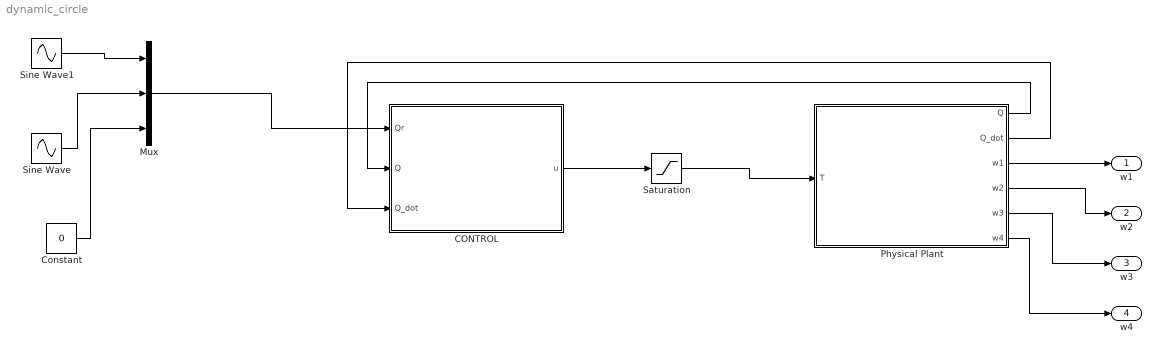
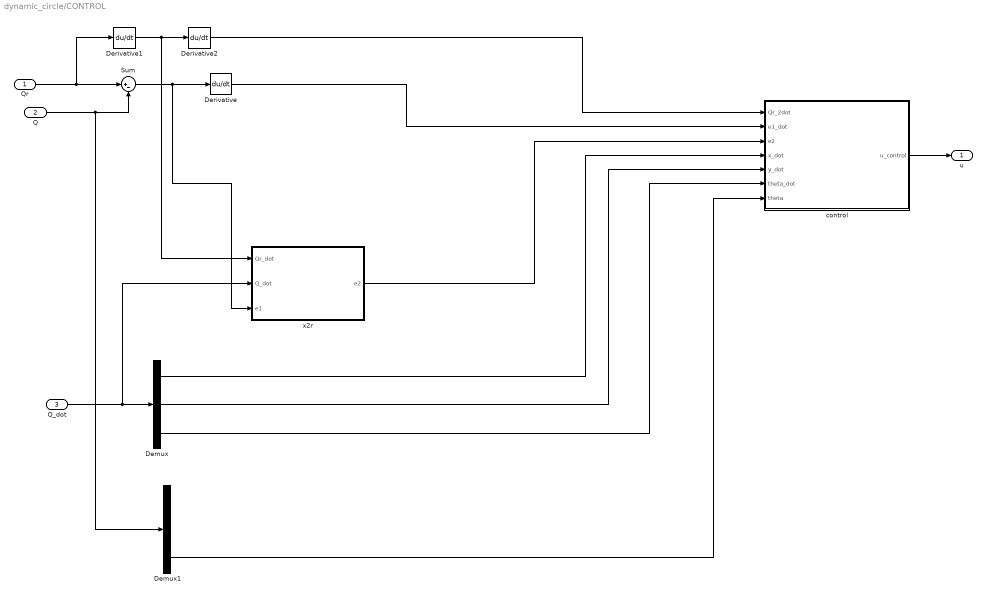
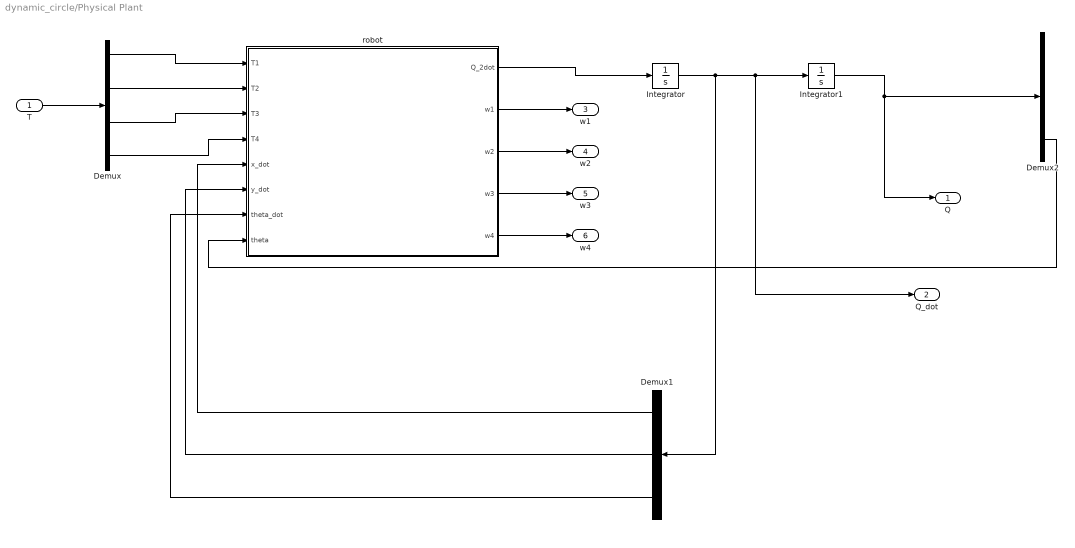
== matlab function dynamic_circle/Physical Plant/robot ==
function [Q_2dot,w1,w2,w3,w4]  = fcn(T1, T2, T3, T4,x_dot,y_dot,theta_dot,theta)
m=5;
I=5;
Ib=0.1;
l1= 0.3;
l2=0.3;
r=0.048;
g=9.8;
u=0.01;
N = m*g/4;
M=[(m+4*Ib/(r*r)) 0 0; 0 (m+4*Ib/(r*r)) 0; 0 0 (I+4*Ib*(l1+l2)*(l1+l2)/(r*r))];
C= [(m+4*Ib/(r*r))*y_dot*theta_dot;-(m+4*Ib/(r*r))*x_dot*theta_dot;0 ];
B=(1/r)*[(cos(theta)+sin(theta)) (cos(theta)-sin(theta)) (cos(theta)+sin(theta)) (cos(theta)-sin(theta));
         (-cos(theta)+sin(theta)) (cos(theta)+sin(theta)) (-cos(theta)+sin(theta)) (cos(theta)+sin(theta)); 
         (-(l1+l2)) (l1+l2) (l1+l2) (-(l1+l2)) ];
T=[T1;T2;T3;T4];
xm= cos(theta)*x_dot+sin(theta)*y_dot;
ym= -sin(theta)*x_dot+cos(theta)*y_dot;
w1 = (1/r)*(xm-ym-(l1+l2)*theta_dot);
w2 = (1/r)*(xm+ym+(l1+l2)*theta_dot);
w3 = (1/r)*(xm-ym+(l1+l2)*theta_dot);
w4 = (1/r)*(xm+ym-(l1+l2)*theta_dot);
w_max = 5*pi;
if w1 > w_max
    w1 = w_max; %w = 20.83
elseif w1 < -w_max
    w1 = -w_max;
end
if w2 > w_max
    w2 = w_max;
elseif w2 < -w_max
    w2 = -w_max;
end
if w3 > w_max
    w3 = w_max;
elseif w3 < -w_max
    w3 = -w_max;
end
if w4 > w_max
    w4 = w_max;
elseif w4 < -w_max
    w4 = -w_max;
end
Xi=[u*r*N*sign(w1);u*r*N*sign(w2);u*r*N*sign(w3);u*N*r*sign(w4)];

Q_2dot=inv(M)*(B*T-C-B*Xi);

== matlab function dynamic_circle/CONTROL/control ==
function u_control = fcn(Qr_2dot,e1_dot,e2,x_dot,y_dot,theta_dot,theta)

m=5;
I=5;
Ib=0.1;
l1= 0.3;
l2=0.3;
r=0.048;
g=9.8;
u=0.01;
N = m*g/4;
M=[(m+4*Ib/(r*r)) 0 0; 0 (m+4*Ib/(r*r)) 0; 0 0 (I+4*Ib*(l1+l2)*(l1+l2)/(r*r))];
C= [(m+4*Ib/(r*r))*y_dot*theta_dot;-(m+4*Ib/(r*r))*x_dot*theta_dot;0 ];
B=(1/r)*[(cos(theta)+sin(theta)) (cos(theta)-sin(theta)) (cos(theta)+sin(theta)) (cos(theta)-sin(theta));
    (-cos(theta)+sin(theta)) (cos(theta)+sin(theta)) (-cos(theta)+sin(theta)) (cos(theta)+sin(theta)); 
    (-(l1+l2)) (l1+l2) (l1+l2) (-(l1+l2)) ];

xm= cos(theta)*x_dot+sin(theta)*y_dot;
ym= -sin(theta)*x_dot+cos(theta)*y_dot;
w1 = (1/r)*(xm-ym-(l1+l2)*theta_dot);
w2 = (1/r)*(xm+ym+(l1+l2)*theta_dot);
w3 = (1/r)*(xm-ym+(l1+l2)*theta_dot);
w4 = (1/r)*(xm+ym-(l1+l2)*theta_dot);
if w1 > 1/r
    w1 = 1/r; %w = 20.83
elseif w1 < -1/r
    w1 = -1/r;
end
if w2 > 1/r
    w2 = 1/r;
elseif w2 < -1/r
    w2 = -1/r;
end
if w3 > 1/r
    w3 = 1/r;
elseif w3 < -1/r
    w3 = -1/r;
end
if w4 > 1/r
    w4 = 1/r;
elseif w4 < -1/r
    w4 = -1/r;
end
Xi=[u*r*N*sign(w1);u*r*N*sign(w2);u*r*N*sign(w3);u*N*r*sign(w4)];

k1 = [4 0 0;
      0 4 0;
      0 0 4];
k2 = [4 0 0;
      0 4 0;
      0 0 4];
  
u_control = B'*inv(B*B')*M*((Qr_2dot+k1*e1_dot)+inv(M)*C+inv(M)*B*Xi+k2*e2);

== matlab function dynamic_circle/CONTROL/x2r ==
function e2  = fcn(Qr_dot,Q_dot,e1)

k1 = [4 0 0;
      0 4 0;
      0 0 4];
 
%x2r_dot = (Qr_2dot+k1*e1_dot);
x2r = Qr_dot + k1*e1;
e2 = x2r - Q_dot;

/*
 * File: dynamic_circle.c
 *
 * Code generated for Simulink model 'dynamic_circle'.
 *
 * Model version                  : 7.32
 * Simulink Coder version         : 9.4 (R2020b) 29-Jul-2020
 * C/C++ source code generated on : Sat Apr  6 18:34:48 2024
 *
 * Target selection: ert.tlc
 * Embedded hardware selection: ARM Compatible->ARM Cortex-M
 * Emulation hardware selection:
 *    Differs from embedded hardware (Custom Processor->MATLAB Host Computer)
 * Code generation objectives:
 *    1. Execution efficiency
 *    2. RAM efficiency
 * Validation result: Not run
 */

#include "dynamic_circle.h"
#define NumBitsPerChar                 8U

/* Private macros used by the generated code to access rtModel */
#ifndef rtmIsMajorTimeStep
#define rtmIsMajorTimeStep(rtm)        (((rtm)->Timing.simTimeStep) == MAJOR_TIME_STEP)
#endif

#ifndef rtmIsMinorTimeStep
#define rtmIsMinorTimeStep(rtm)        (((rtm)->Timing.simTimeStep) == MINOR_TIME_STEP)
#endif

#ifndef rtmSetTPtr
#define rtmSetTPtr(rtm, val)           ((rtm)->Timing.t = (val))
#endif

/* Continuous states */
X rtX;

/* Block signals and states (default storage) */
DW rtDW;

/* External outputs (root outports fed by signals with default storage) */
ExtY rtY;

/* Real-time model */
static RT_MODEL rtM_;
RT_MODEL *const rtM = &rtM_;

/* private model entry point functions */
extern void dynamic_circle_derivatives(void);
static real_T rtGetInf(void);
static real32_T rtGetInfF(void);
static real_T rtGetMinusInf(void);
static real32_T rtGetMinusInfF(void);
static real_T rtGetNaN(void);
static real32_T rtGetNaNF(void);
extern real_T rtInf;
extern real_T rtMinusInf;
extern real_T rtNaN;
extern real32_T rtInfF;
extern real32_T rtMinusInfF;
extern real32_T rtNaNF;
static void rt_InitInfAndNaN(size_t realSize);
static boolean_T rtIsInf(real_T value);
static boolean_T rtIsInfF(real32_T value);
static boolean_T rtIsNaN(real_T value);
static boolean_T rtIsNaNF(real32_T value);
typedef struct {
  struct {
    uint32_T wordH;
    uint32_T wordL;
  } words;
} BigEndianIEEEDouble;

typedef struct {
  struct {
    uint32_T wordL;
    uint32_T wordH;
  } words;
} LittleEndianIEEEDouble;

typedef struct {
  union {
    real32_T wordLreal;
    uint32_T wordLuint;
  } wordL;
} IEEESingle;

real_T rtInf;
real_T rtMinusInf;
real_T rtNaN;
real32_T rtInfF;
real32_T rtMinusInfF;
real32_T rtNaNF;

/*
 * Initialize rtInf needed by the generated code.
 * Inf is initialized as non-signaling. Assumes IEEE.
 */
static real_T rtGetInf(void)
{
  size_t bitsPerReal = sizeof(real_T) * (NumBitsPerChar);
  real_T inf = 0.0;
  if (bitsPerReal == 32U) {
    inf = rtGetInfF();
  } else {
    union {
      LittleEndianIEEEDouble bitVal;
      real_T fltVal;
    } tmpVal;

    tmpVal.bitVal.words.wordH = 0x7FF00000U;
    tmpVal.bitVal.words.wordL = 0x00000000U;
    inf = tmpVal.fltVal;
  }

  return inf;
}

/*
 * Initialize rtInfF needed by the generated code.
 * Inf is initialized as non-signaling. Assumes IEEE.
 */
static real32_T rtGetInfF(void)
{
  IEEESingle infF;
  infF.wordL.wordLuint = 0x7F800000U;
  return infF.wordL.wordLreal;
}

/*
 * Initialize rtMinusInf needed by the generated code.
 * Inf is initialized as non-signaling. Assumes IEEE.
 */
static real_T rtGetMinusInf(void)
{
  size_t bitsPerReal = sizeof(real_T) * (NumBitsPerChar);
  real_T minf = 0.0;
  if (bitsPerReal == 32U) {
    minf = rtGetMinusInfF();
  } else {
    union {
      LittleEndianIEEEDouble bitVal;
      real_T fltVal;
    } tmpVal;

    tmpVal.bitVal.words.wordH = 0xFFF00000U;
    tmpVal.bitVal.words.wordL = 0x00000000U;
    minf = tmpVal.fltVal;
  }

  return minf;
}

/*
 * Initialize rtMinusInfF needed by the generated code.
 * Inf is initialized as non-signaling. Assumes IEEE.
 */
static real32_T rtGetMinusInfF(void)
{
  IEEESingle minfF;
  minfF.wordL.wordLuint = 0xFF800000U;
  return minfF.wordL.wordLreal;
}

/*
 * Initialize rtNaN needed by the generated code.
 * NaN is initialized as non-signaling. Assumes IEEE.
 */
static real_T rtGetNaN(void)
{
  size_t bitsPerReal = sizeof(real_T) * (NumBitsPerChar);
  real_T nan = 0.0;
  if (bitsPerReal == 32U) {
    nan = rtGetNaNF();
  } else {
    union {
      LittleEndianIEEEDouble bitVal;
      real_T fltVal;
    } tmpVal;

    tmpVal.bitVal.words.wordH = 0xFFF80000U;
    tmpVal.bitVal.words.wordL = 0x00000000U;
    nan = tmpVal.fltVal;
  }

  return nan;
}

/*
 * Initialize rtNaNF needed by the generated code.
 * NaN is initialized as non-signaling. Assumes IEEE.
 */
static real32_T rtGetNaNF(void)
{
  IEEESingle nanF = { { 0 } };

  nanF.wordL.wordLuint = 0xFFC00000U;
  return nanF.wordL.wordLreal;
}

/*
 * Initialize the rtInf, rtMinusInf, and rtNaN needed by the
 * generated code. NaN is initialized as non-signaling. Assumes IEEE.
 */
static void rt_InitInfAndNaN(size_t realSize)
{
  (void) (realSize);
  rtNaN = rtGetNaN();
  rtNaNF = rtGetNaNF();
  rtInf = rtGetInf();
  rtInfF = rtGetInfF();
  rtMinusInf = rtGetMinusInf();
  rtMinusInfF = rtGetMinusInfF();
}

/* Test if value is infinite */
static boolean_T rtIsInf(real_T value)
{
  return (boolean_T)((value==rtInf || value==rtMinusInf) ? 1U : 0U);
}

/* Test if single-precision value is infinite */
static boolean_T rtIsInfF(real32_T value)
{
  return (boolean_T)(((value)==rtInfF || (value)==rtMinusInfF) ? 1U : 0U);
}

/* Test if value is not a number */
static boolean_T rtIsNaN(real_T value)
{
  boolean_T result = (boolean_T) 0;
  size_t bitsPerReal = sizeof(real_T) * (NumBitsPerChar);
  if (bitsPerReal == 32U) {
    result = rtIsNaNF((real32_T)value);
  } else {
    union {
      LittleEndianIEEEDouble bitVal;
      real_T fltVal;
    } tmpVal;

    tmpVal.fltVal = value;
    result = (boolean_T)((tmpVal.bitVal.words.wordH & 0x7FF00000) == 0x7FF00000 &&
                         ( (tmpVal.bitVal.words.wordH & 0x000FFFFF) != 0 ||
                          (tmpVal.bitVal.words.wordL != 0) ));
  }

  return result;
}

/* Test if single-precision value is not a number */
static boolean_T rtIsNaNF(real32_T value)
{
  IEEESingle tmp;
  tmp.wordL.wordLreal = value;
  return (boolean_T)( (tmp.wordL.wordLuint & 0x7F800000) == 0x7F800000 &&
                     (tmp.wordL.wordLuint & 0x007FFFFF) != 0 );
}

/*
 * This function updates continuous states using the ODE3 fixed-step
 * solver algorithm
 */
static void rt_ertODEUpdateContinuousStates(RTWSolverInfo *si )
{
  /* Solver Matrices */
  static const real_T rt_ODE3_A[3] = {
    1.0/2.0, 3.0/4.0, 1.0
  };

  static const real_T rt_ODE3_B[3][3] = {
    { 1.0/2.0, 0.0, 0.0 },

    { 0.0, 3.0/4.0, 0.0 },

    { 2.0/9.0, 1.0/3.0, 4.0/9.0 }
  };

  time_T t = rtsiGetT(si);
  time_T tnew = rtsiGetSolverStopTime(si);
  time_T h = rtsiGetStepSize(si);
  real_T *x = rtsiGetContStates(si);
  ODE3_IntgData *id = (ODE3_IntgData *)rtsiGetSolverData(si);
  real_T *y = id->y;
  real_T *f0 = id->f[0];
  real_T *f1 = id->f[1];
  real_T *f2 = id->f[2];
  real_T hB[3];
  int_T i;
  int_T nXc = 6;
  rtsiSetSimTimeStep(si,MINOR_TIME_STEP);

  /* Save the state values at time t in y, we'll use x as ynew. */
  (void) memcpy(y, x,
                (uint_T)nXc*sizeof(real_T));

  /* Assumes that rtsiSetT and ModelOutputs are up-to-date */
  /* f0 = f(t,y) */
  rtsiSetdX(si, f0);
  dynamic_circle_derivatives();

  /* f(:,2) = feval(odefile, t + hA(1), y + f*hB(:,1), args(:)(*)); */
  hB[0] = h * rt_ODE3_B[0][0];
  for (i = 0; i < nXc; i++) {
    x[i] = y[i] + (f0[i]*hB[0]);
  }

  rtsiSetT(si, t + h*rt_ODE3_A[0]);
  rtsiSetdX(si, f1);
  dynamic_circle_step();
  dynamic_circle_derivatives();

  /* f(:,3) = feval(odefile, t + hA(2), y + f*hB(:,2), args(:)(*)); */
  for (i = 0; i <= 1; i++) {
    hB[i] = h * rt_ODE3_B[1][i];
  }

  for (i = 0; i < nXc; i++) {
    x[i] = y[i] + (f0[i]*hB[0] + f1[i]*hB[1]);
  }

  rtsiSetT(si, t + h*rt_ODE3_A[1]);
  rtsiSetdX(si, f2);
  dynamic_circle_step();
  dynamic_circle_derivatives();

  /* tnew = t + hA(3);
     ynew = y + f*hB(:,3); */
  for (i = 0; i <= 2; i++) {
    hB[i] = h * rt_ODE3_B[2][i];
  }

  for (i = 0; i < nXc; i++) {
    x[i] = y[i] + (f0[i]*hB[0] + f1[i]*hB[1] + f2[i]*hB[2]);
  }

  rtsiSetT(si, tnew);
  rtsiSetSimTimeStep(si,MAJOR_TIME_STEP);
}

/* Model step function */
void dynamic_circle_step(void)
{
  if (rtmIsMajorTimeStep(rtM)) {
    /* set solver stop time */
    rtsiSetSolverStopTime(&rtM->solverInfo,((rtM->Timing.clockTick0+1)*
      rtM->Timing.stepSize0));
  }                                    /* end MajorTimeStep */

  /* Update absolute time of base rate at minor time step */
  if (rtmIsMinorTimeStep(rtM)) {
    rtM->Timing.t[0] = rtsiGetT(&rtM->solverInfo);
  }

  {
    static const real_T b_a[9] = { 0.0055987558320373249, -0.0, 0.0, -0.0,
      0.0055987558320373249, -0.0, -0.0, -0.0, 0.014814814814814815 };

    static const real_T b_b[9] = { 178.61111111111111, 0.0, 0.0, 0.0,
      178.61111111111111, 0.0, 0.0, 0.0, 67.5 };

    static const real_T b[4] = { -0.6, 0.6, 0.6, -0.6 };

    static const int8_T a[9] = { 4, 0, 0, 0, 4, 0, 0, 0, 4 };

    real_T B_0[12];
    real_T y_tmp[12];
    real_T y_tmp_0[12];
    real_T x[9];
    real_T y[9];
    real_T rtb_Saturation[4];
    real_T rtb_Derivative2[3];
    real_T rtb_Derivative2_0[3];
    real_T tmp[3];
    real_T (*lastU)[3];
    real_T B_tmp;
    real_T B_tmp_0;
    real_T B_tmp_1;
    real_T absx21;
    real_T absx31;
    real_T rtb_Derivative_idx_0;
    real_T rtb_Derivative_idx_1;
    real_T rtb_Derivative_idx_2;
    real_T tmp_0;
    real_T tmp_1;
    real_T tmp_2;
    real_T w1;
    real_T w2;
    real_T w3;
    real_T xm;
    real_T ym;
    int32_T itmp;
    int32_T p1;
    int32_T p2;
    int32_T p3;

    /* Sin: '<Root>/Sine Wave1' incorporates:
     *  Sin: '<Root>/Sine Wave'
     */
    w1 = 0.41887902047863906 * rtM->Timing.t[0];

    /* Sin: '<Root>/Sine Wave1' */
    rtDW.SineWave1 = -sin(w1 + 1.5707963267948966);

    /* Sin: '<Root>/Sine Wave' */
    rtDW.SineWave = sin(w1);

    /* Derivative: '<S1>/Derivative1' incorporates:
     *  Derivative: '<S1>/Derivative'
     *  Derivative: '<S1>/Derivative2'
     */
    w1 = rtM->Timing.t[0];
    if ((rtDW.TimeStampA >= w1) && (rtDW.TimeStampB >= w1)) {
      /* Derivative: '<S1>/Derivative1' */
      rtDW.Derivative1[0] = 0.0;
      rtDW.Derivative1[1] = 0.0;
      rtDW.Derivative1[2] = 0.0;
    } else {
      w2 = rtDW.TimeStampA;
      lastU = &rtDW.LastUAtTimeA;
      if (rtDW.TimeStampA < rtDW.TimeStampB) {
        if (rtDW.TimeStampB < w1) {
          w2 = rtDW.TimeStampB;
          lastU = &rtDW.LastUAtTimeB;
        }
      } else {
        if (rtDW.TimeStampA >= w1) {
          w2 = rtDW.TimeStampB;
          lastU = &rtDW.LastUAtTimeB;
        }
      }

      w2 = w1 - w2;

      /* Derivative: '<S1>/Derivative1' incorporates:
       *  Constant: '<Root>/Constant'
       */
      rtDW.Derivative1[0] = (rtDW.SineWave1 - (*lastU)[0]) / w2;
      rtDW.Derivative1[1] = (rtDW.SineWave - (*lastU)[1]) / w2;
      rtDW.Derivative1[2] = (0.0 - (*lastU)[2]) / w2;
    }

    /* End of Derivative: '<S1>/Derivative1' */

    /* Derivative: '<S1>/Derivative2' */
    if ((rtDW.TimeStampA_m >= w1) && (rtDW.TimeStampB_i >= w1)) {
      rtb_Derivative2[0] = 0.0;
      rtb_Derivative2[1] = 0.0;
      rtb_Derivative2[2] = 0.0;
    } else {
      w2 = rtDW.TimeStampA_m;
      lastU = &rtDW.LastUAtTimeA_d;
      if (rtDW.TimeStampA_m < rtDW.TimeStampB_i) {
        if (rtDW.TimeStampB_i < w1) {
          w2 = rtDW.TimeStampB_i;
          lastU = &rtDW.LastUAtTimeB_o;
        }
      } else {
        if (rtDW.TimeStampA_m >= w1) {
          w2 = rtDW.TimeStampB_i;
          lastU = &rtDW.LastUAtTimeB_o;
        }
      }

      w2 = w1 - w2;
      rtb_Derivative2[0] = (rtDW.Derivative1[0] - (*lastU)[0]) / w2;
      rtb_Derivative2[1] = (rtDW.Derivative1[1] - (*lastU)[1]) / w2;
      rtb_Derivative2[2] = (rtDW.Derivative1[2] - (*lastU)[2]) / w2;
    }

    /* Sum: '<S1>/Sum' incorporates:
     *  Constant: '<Root>/Constant'
     *  Integrator: '<S2>/Integrator1'
     */
    rtDW.Sum[0] = rtDW.SineWave1 - rtX.Integrator1_CSTATE[0];
    rtDW.Sum[1] = rtDW.SineWave - rtX.Integrator1_CSTATE[1];
    rtDW.Sum[2] = 0.0 - rtX.Integrator1_CSTATE[2];

    /* Derivative: '<S1>/Derivative' */
    if ((rtDW.TimeStampA_o >= w1) && (rtDW.TimeStampB_g >= w1)) {
      rtb_Derivative_idx_0 = 0.0;
      rtb_Derivative_idx_1 = 0.0;
      rtb_Derivative_idx_2 = 0.0;
    } else {
      w2 = rtDW.TimeStampA_o;
      lastU = &rtDW.LastUAtTimeA_k;
      if (rtDW.TimeStampA_o < rtDW.TimeStampB_g) {
        if (rtDW.TimeStampB_g < w1) {
          w2 = rtDW.TimeStampB_g;
          lastU = &rtDW.LastUAtTimeB_on;
        }
      } else {
        if (rtDW.TimeStampA_o >= w1) {
          w2 = rtDW.TimeStampB_g;
          lastU = &rtDW.LastUAtTimeB_on;
        }
      }

      w2 = w1 - w2;
      rtb_Derivative_idx_0 = (rtDW.Sum[0] - (*lastU)[0]) / w2;
      rtb_Derivative_idx_1 = (rtDW.Sum[1] - (*lastU)[1]) / w2;
      rtb_Derivative_idx_2 = (rtDW.Sum[2] - (*lastU)[2]) / w2;
    }

    /* Integrator: '<S2>/Integrator' */
    rtDW.Integrator[0] = rtX.Integrator_CSTATE[0];
    rtDW.Integrator[1] = rtX.Integrator_CSTATE[1];
    rtDW.Integrator[2] = rtX.Integrator_CSTATE[2];

    /* MATLAB Function: '<S1>/control' incorporates:
     *  Integrator: '<S2>/Integrator1'
     *  MATLAB Function: '<S2>/robot'
     */
    w1 = cos(rtX.Integrator1_CSTATE[2]);
    w2 = sin(rtX.Integrator1_CSTATE[2]);
    B_0[0] = (w1 + w2) * 20.833333333333332;
    B_0[3] = (w1 - w2) * 20.833333333333332;
    B_tmp = (cos(rtX.Integrator1_CSTATE[2]) + sin(rtX.Integrator1_CSTATE[2])) *
      20.833333333333332;
    B_0[6] = B_tmp;
    B_tmp_0 = (cos(rtX.Integrator1_CSTATE[2]) - sin(rtX.Integrator1_CSTATE[2])) *
      20.833333333333332;
    B_0[9] = B_tmp_0;
    B_0[1] = (-w1 + w2) * 20.833333333333332;
    B_0[4] = B_tmp;
    B_tmp_1 = (-cos(rtX.Integrator1_CSTATE[2]) + sin(rtX.Integrator1_CSTATE[2]))
      * 20.833333333333332;
    B_0[7] = B_tmp_1;
    B_0[10] = B_tmp;
    B_0[2] = -12.499999999999998;
    B_0[5] = 12.499999999999998;
    B_0[8] = 12.499999999999998;
    B_0[11] = -12.499999999999998;
    xm = w1 * rtDW.Integrator[0] + w2 * rtDW.Integrator[1];
    ym = -w2 * rtDW.Integrator[0] + w1 * rtDW.Integrator[1];
    w3 = xm - ym;
    w1 = (w3 - 0.6 * rtDW.Integrator[2]) * 20.833333333333332;
    xm += ym;
    w2 = (xm + 0.6 * rtDW.Integrator[2]) * 20.833333333333332;
    w3 = (w3 + 0.6 * rtDW.Integrator[2]) * 20.833333333333332;
    xm = (xm - 0.6 * rtDW.Integrator[2]) * 20.833333333333332;
    if (w1 > 20.833333333333332) {
      w1 = 20.833333333333332;
    } else {
      if (w1 < -20.833333333333332) {
        w1 = -20.833333333333332;
      }
    }

    if (w2 > 20.833333333333332) {
      w2 = 20.833333333333332;
    } else {
      if (w2 < -20.833333333333332) {
        w2 = -20.833333333333332;
      }
    }

    if (w3 > 20.833333333333332) {
      w3 = 20.833333333333332;
    } else {
      if (w3 < -20.833333333333332) {
        w3 = -20.833333333333332;
      }
    }

    if (xm > 20.833333333333332) {
      xm = 20.833333333333332;
    } else {
      if (xm < -20.833333333333332) {
        xm = -20.833333333333332;
      }
    }

    for (p1 = 0; p1 < 3; p1++) {
      p3 = p1 << 2;
      y_tmp[p3] = B_0[p1];
      y_tmp[p3 + 1] = B_0[p1 + 3];
      y_tmp[p3 + 2] = B_0[p1 + 6];
      y_tmp[p3 + 3] = B_0[p1 + 9];
      for (p2 = 0; p2 < 3; p2++) {
        itmp = p2 + 3 * p1;
        y[itmp] = 0.0;
        y[itmp] += y_tmp[p3] * B_0[p2];
        y[itmp] += y_tmp[p3 + 1] * B_0[p2 + 3];
        y[itmp] += y_tmp[p3 + 2] * B_0[p2 + 6];
        y[itmp] += y_tmp[p3 + 3] * B_0[p2 + 9];
      }
    }

    memcpy(&x[0], &y[0], 9U * sizeof(real_T));
    p1 = 0;
    p2 = 3;
    p3 = 6;
    ym = fabs(y[0]);
    absx21 = fabs(y[1]);
    absx31 = fabs(y[2]);
    if ((absx21 > ym) && (absx21 > absx31)) {
      p1 = 3;
      p2 = 0;
      x[0] = y[1];
      x[1] = y[0];
      x[3] = y[4];
      x[4] = y[3];
      x[6] = y[7];
      x[7] = y[6];
    } else {
      if (absx31 > ym) {
        p1 = 6;
        p3 = 0;
        x[0] = y[2];
        x[2] = y[0];
        x[3] = y[5];
        x[5] = y[3];
        x[6] = y[8];
        x[8] = y[6];
      }
    }

    absx31 = x[1] / x[0];
    x[1] = absx31;
    absx21 = x[2] / x[0];
    x[2] = absx21;
    x[4] -= absx31 * x[3];
    x[5] -= absx21 * x[3];
    x[7] -= absx31 * x[6];
    x[8] -= absx21 * x[6];
    if (fabs(x[5]) > fabs(x[4])) {
      itmp = p2;
      p2 = p3;
      p3 = itmp;
      x[1] = absx21;
      x[2] = absx31;
      ym = x[4];
      x[4] = x[5];
      x[5] = ym;
      ym = x[7];
      x[7] = x[8];
      x[8] = ym;
    }

    absx31 = x[5] / x[4];
    x[8] -= absx31 * x[7];
    ym = (absx31 * x[1] - x[2]) / x[8];
    absx21 = -(x[7] * ym + x[1]) / x[4];
    y[p1] = ((1.0 - x[3] * absx21) - x[6] * ym) / x[0];
    y[p1 + 1] = absx21;
    y[p1 + 2] = ym;
    ym = -absx31 / x[8];
    absx21 = (1.0 - x[7] * ym) / x[4];
    y[p2] = -(x[3] * absx21 + x[6] * ym) / x[0];
    y[p2 + 1] = absx21;
    y[p2 + 2] = ym;
    ym = 1.0 / x[8];
    absx21 = -x[7] * ym / x[4];
    y[p3] = -(x[3] * absx21 + x[6] * ym) / x[0];
    y[p3 + 1] = absx21;
    y[p3 + 2] = ym;
    for (p1 = 0; p1 < 9; p1++) {
      x[p1] = a[p1];
    }

    for (p1 = 0; p1 < 3; p1++) {
      for (p2 = 0; p2 < 4; p2++) {
        p3 = p2 + (p1 << 2);
        y_tmp_0[p3] = 0.0;
        y_tmp_0[p3] += y[3 * p1] * y_tmp[p2];
        y_tmp_0[p3] += y[3 * p1 + 1] * y_tmp[p2 + 4];
        y_tmp_0[p3] += y[3 * p1 + 2] * y_tmp[p2 + 8];
      }
    }

    absx21 = 178.61111111111111 * rtDW.Integrator[1] * rtDW.Integrator[2];
    absx31 = -178.61111111111111 * rtDW.Integrator[0] * rtDW.Integrator[2];
    if (w1 < 0.0) {
      w1 = -1.0;
    } else if (w1 > 0.0) {
      w1 = 1.0;
    } else if (w1 == 0.0) {
      w1 = 0.0;
    } else {
      w1 = (rtNaN);
    }

    ym = 0.00588 * w1;
    if (w2 < 0.0) {
      w2 = -1.0;
    } else if (w2 > 0.0) {
      w2 = 1.0;
    } else if (w2 == 0.0) {
      w2 = 0.0;
    } else {
      w2 = (rtNaN);
    }

    tmp_0 = 0.00588 * w2;
    if (w3 < 0.0) {
      w3 = -1.0;
    } else if (w3 > 0.0) {
      w3 = 1.0;
    } else if (w3 == 0.0) {
      w3 = 0.0;
    } else {
      w3 = (rtNaN);
    }

    tmp_1 = 0.00588 * w3;
    if (xm < 0.0) {
      xm = -1.0;
    } else if (xm > 0.0) {
      xm = 1.0;
    } else if (xm == 0.0) {
      xm = 0.0;
    } else {
      xm = (rtNaN);
    }

    tmp_2 = 0.00588 * xm;
    for (p1 = 0; p1 < 3; p1++) {
      w1 = b_a[p1 + 3];
      w2 = b_a[p1 + 6];
      for (p2 = 0; p2 < 4; p2++) {
        p3 = p1 + 3 * p2;
        y_tmp[p3] = 0.0;
        y_tmp[p3] += B_0[3 * p2] * b_a[p1];
        y_tmp[p3] += B_0[3 * p2 + 1] * w1;
        y_tmp[p3] += B_0[3 * p2 + 2] * w2;
      }

      /* MATLAB Function: '<S1>/x2r' */
      tmp[p1] = ((((real_T)a[p1 + 3] * rtDW.Sum[1] + (real_T)a[p1] * rtDW.Sum[0])
                  + (real_T)a[p1 + 6] * rtDW.Sum[2]) + rtDW.Derivative1[p1]) -
        rtDW.Integrator[p1];
      rtb_Derivative2_0[p1] = ((((x[p1 + 3] * rtb_Derivative_idx_1 + x[p1] *
        rtb_Derivative_idx_0) + x[p1 + 6] * rtb_Derivative_idx_2) +
        rtb_Derivative2[p1]) + (w2 * 0.0 + (w1 * absx31 + b_a[p1] * absx21))) +
        (((y_tmp[p1 + 3] * tmp_0 + y_tmp[p1] * ym) + y_tmp[p1 + 6] * tmp_1) +
         y_tmp[p1 + 9] * tmp_2);
    }

    for (p1 = 0; p1 < 3; p1++) {
      for (p2 = 0; p2 < 4; p2++) {
        p3 = p2 + (p1 << 2);
        y_tmp[p3] = 0.0;
        y_tmp[p3] += b_b[3 * p1] * y_tmp_0[p2];
        y_tmp[p3] += b_b[3 * p1 + 1] * y_tmp_0[p2 + 4];
        y_tmp[p3] += b_b[3 * p1 + 2] * y_tmp_0[p2 + 8];
      }

      rtb_Derivative2[p1] = x[p1 + 6] * tmp[2] + (x[p1 + 3] * tmp[1] + x[p1] *
        tmp[0]);
    }

    w1 = rtb_Derivative2_0[0] + rtb_Derivative2[0];
    w2 = rtb_Derivative2_0[1] + rtb_Derivative2[1];
    xm = rtb_Derivative2_0[2] + rtb_Derivative2[2];

    /* MATLAB Function: '<S2>/robot' */
    B_0[0] = B_tmp;
    B_0[3] = B_tmp_0;
    B_0[6] = B_tmp;
    B_0[9] = B_tmp_0;
    B_0[1] = B_tmp_1;
    B_0[4] = B_tmp;
    B_0[7] = B_tmp_1;
    B_0[10] = B_tmp;
    for (p1 = 0; p1 < 4; p1++) {
      /* MATLAB Function: '<S1>/control' */
      w3 = y_tmp[p1 + 8] * xm + (y_tmp[p1 + 4] * w2 + y_tmp[p1] * w1);

      /* Saturate: '<Root>/Saturation' */
      if (w3 > 100.0) {
        rtb_Saturation[p1] = 100.0;
      } else if (w3 < -100.0) {
        rtb_Saturation[p1] = -100.0;
      } else {
        rtb_Saturation[p1] = w3;
      }

      /* End of Saturate: '<Root>/Saturation' */

      /* MATLAB Function: '<S2>/robot' */
      B_0[3 * p1 + 2] = 20.833333333333332 * b[p1];
    }

    /* MATLAB Function: '<S2>/robot' incorporates:
     *  Integrator: '<S2>/Integrator1'
     */
    xm = cos(rtX.Integrator1_CSTATE[2]) * rtDW.Integrator[0] + sin
      (rtX.Integrator1_CSTATE[2]) * rtDW.Integrator[1];
    ym = -sin(rtX.Integrator1_CSTATE[2]) * rtDW.Integrator[0] + cos
      (rtX.Integrator1_CSTATE[2]) * rtDW.Integrator[1];
    w3 = xm - ym;
    w1 = (w3 - 0.6 * rtDW.Integrator[2]) * 20.833333333333332;
    xm += ym;
    w2 = (xm + 0.6 * rtDW.Integrator[2]) * 20.833333333333332;
    w3 = (w3 + 0.6 * rtDW.Integrator[2]) * 20.833333333333332;
    xm = (xm - 0.6 * rtDW.Integrator[2]) * 20.833333333333332;
    if (w1 > 15.707963267948966) {
      w1 = 15.707963267948966;
    } else {
      if (w1 < -15.707963267948966) {
        w1 = -15.707963267948966;
      }
    }

    if (w2 > 15.707963267948966) {
      w2 = 15.707963267948966;
    } else {
      if (w2 < -15.707963267948966) {
        w2 = -15.707963267948966;
      }
    }

    if (w3 > 15.707963267948966) {
      w3 = 15.707963267948966;
    } else {
      if (w3 < -15.707963267948966) {
        w3 = -15.707963267948966;
      }
    }

    if (xm > 15.707963267948966) {
      xm = 15.707963267948966;
    } else {
      if (xm < -15.707963267948966) {
        xm = -15.707963267948966;
      }
    }

    B_tmp = rtb_Saturation[0];
    B_tmp_0 = rtb_Saturation[1];
    B_tmp_1 = rtb_Saturation[2];
    rtb_Derivative_idx_0 = rtb_Saturation[3];
    tmp[0] = absx21;
    tmp[1] = absx31;
    tmp[2] = 0.0;
    if (w1 < 0.0) {
      absx21 = -1.0;
    } else if (w1 > 0.0) {
      absx21 = 1.0;
    } else if (w1 == 0.0) {
      absx21 = 0.0;
    } else {
      absx21 = (rtNaN);
    }

    ym = 0.00588 * absx21;
    if (w2 < 0.0) {
      absx21 = -1.0;
    } else if (w2 > 0.0) {
      absx21 = 1.0;
    } else if (w2 == 0.0) {
      absx21 = 0.0;
    } else {
      absx21 = (rtNaN);
    }

    tmp_0 = 0.00588 * absx21;
    if (w3 < 0.0) {
      absx21 = -1.0;
    } else if (w3 > 0.0) {
      absx21 = 1.0;
    } else if (w3 == 0.0) {
      absx21 = 0.0;
    } else {
      absx21 = (rtNaN);
    }

    tmp_1 = 0.00588 * absx21;
    if (xm < 0.0) {
      absx21 = -1.0;
    } else if (xm > 0.0) {
      absx21 = 1.0;
    } else if (xm == 0.0) {
      absx21 = 0.0;
    } else {
      absx21 = (rtNaN);
    }

    tmp_2 = 0.00588 * absx21;
    for (p1 = 0; p1 < 3; p1++) {
      absx21 = B_0[p1];
      absx31 = absx21 * ym;
      rtb_Derivative_idx_1 = absx21 * B_tmp;
      absx21 = B_0[p1 + 3];
      absx31 += absx21 * tmp_0;
      rtb_Derivative_idx_1 += absx21 * B_tmp_0;
      absx21 = B_0[p1 + 6];
      absx31 += absx21 * tmp_1;
      rtb_Derivative_idx_1 += absx21 * B_tmp_1;
      absx21 = B_0[p1 + 9];
      absx31 += absx21 * tmp_2;
      rtb_Derivative_idx_1 += absx21 * rtb_Derivative_idx_0;
      rtb_Derivative2_0[p1] = (rtb_Derivative_idx_1 - tmp[p1]) - absx31;
    }

    for (p1 = 0; p1 < 3; p1++) {
      rtDW.Q_2dot[p1] = 0.0;
      rtDW.Q_2dot[p1] += b_a[p1] * rtb_Derivative2_0[0];
      rtDW.Q_2dot[p1] += b_a[p1 + 3] * rtb_Derivative2_0[1];
      rtDW.Q_2dot[p1] += b_a[p1 + 6] * rtb_Derivative2_0[2];
    }

    /* Outport: '<Root>/w1' incorporates:
     *  MATLAB Function: '<S2>/robot'
     */
    rtY.w1 = w1;

    /* Outport: '<Root>/w2' incorporates:
     *  MATLAB Function: '<S2>/robot'
     */
    rtY.w2 = w2;

    /* Outport: '<Root>/w3' incorporates:
     *  MATLAB Function: '<S2>/robot'
     */
    rtY.w3 = w3;

    /* Outport: '<Root>/w4' incorporates:
     *  MATLAB Function: '<S2>/robot'
     */
    rtY.w4 = xm;
  }

  if (rtmIsMajorTimeStep(rtM)) {
    real_T (*lastU)[3];

    /* Update for Derivative: '<S1>/Derivative1' incorporates:
     *  Constant: '<Root>/Constant'
     */
    if (rtDW.TimeStampA == (rtInf)) {
      rtDW.TimeStampA = rtM->Timing.t[0];
      lastU = &rtDW.LastUAtTimeA;
    } else if (rtDW.TimeStampB == (rtInf)) {
      rtDW.TimeStampB = rtM->Timing.t[0];
      lastU = &rtDW.LastUAtTimeB;
    } else if (rtDW.TimeStampA < rtDW.TimeStampB) {
      rtDW.TimeStampA = rtM->Timing.t[0];
      lastU = &rtDW.LastUAtTimeA;
    } else {
      rtDW.TimeStampB = rtM->Timing.t[0];
      lastU = &rtDW.LastUAtTimeB;
    }

    (*lastU)[0] = rtDW.SineWave1;
    (*lastU)[1] = rtDW.SineWave;
    (*lastU)[2] = 0.0;

    /* End of Update for Derivative: '<S1>/Derivative1' */

    /* Update for Derivative: '<S1>/Derivative2' */
    if (rtDW.TimeStampA_m == (rtInf)) {
      rtDW.TimeStampA_m = rtM->Timing.t[0];
      lastU = &rtDW.LastUAtTimeA_d;
    } else if (rtDW.TimeStampB_i == (rtInf)) {
      rtDW.TimeStampB_i = rtM->Timing.t[0];
      lastU = &rtDW.LastUAtTimeB_o;
    } else if (rtDW.TimeStampA_m < rtDW.TimeStampB_i) {
      rtDW.TimeStampA_m = rtM->Timing.t[0];
      lastU = &rtDW.LastUAtTimeA_d;
    } else {
      rtDW.TimeStampB_i = rtM->Timing.t[0];
      lastU = &rtDW.LastUAtTimeB_o;
    }

    (*lastU)[0] = rtDW.Derivative1[0];
    (*lastU)[1] = rtDW.Derivative1[1];
    (*lastU)[2] = rtDW.Derivative1[2];

    /* End of Update for Derivative: '<S1>/Derivative2' */

    /* Update for Derivative: '<S1>/Derivative' */
    if (rtDW.TimeStampA_o == (rtInf)) {
      rtDW.TimeStampA_o = rtM->Timing.t[0];
      lastU = &rtDW.LastUAtTimeA_k;
    } else if (rtDW.TimeStampB_g == (rtInf)) {
      rtDW.TimeStampB_g = rtM->Timing.t[0];
      lastU = &rtDW.LastUAtTimeB_on;
    } else if (rtDW.TimeStampA_o < rtDW.TimeStampB_g) {
      rtDW.TimeStampA_o = rtM->Timing.t[0];
      lastU = &rtDW.LastUAtTimeA_k;
    } else {
      rtDW.TimeStampB_g = rtM->Timing.t[0];
      lastU = &rtDW.LastUAtTimeB_on;
    }

    (*lastU)[0] = rtDW.Sum[0];
    (*lastU)[1] = rtDW.Sum[1];
    (*lastU)[2] = rtDW.Sum[2];

    /* End of Update for Derivative: '<S1>/Derivative' */
  }                                    /* end MajorTimeStep */

  if (rtmIsMajorTimeStep(rtM)) {
    rt_ertODEUpdateContinuousStates(&rtM->solverInfo);

    /* Update absolute time for base rate */
    /* The "clockTick0" counts the number of times the code of this task has
     * been executed. The absolute time is the multiplication of "clockTick0"
     * and "Timing.stepSize0". Size of "clockTick0" ensures timer will not
     * overflow during the application lifespan selected.
     */
    ++rtM->Timing.clockTick0;
    rtM->Timing.t[0] = rtsiGetSolverStopTime(&rtM->solverInfo);

    {
      /* Update absolute timer for sample time: [0.1s, 0.0s] */
      /* The "clockTick1" counts the number of times the code of this task has
       * been executed. The resolution of this integer timer is 0.1, which is the step size
       * of the task. Size of "clockTick1" ensures timer will not overflow during the
       * application lifespan selected.
       */
      rtM->Timing.clockTick1++;
    }
  }                                    /* end MajorTimeStep */
}
